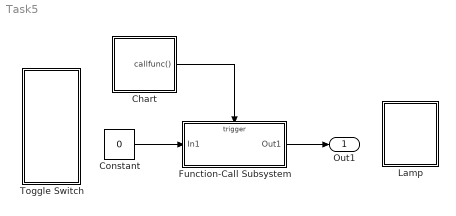
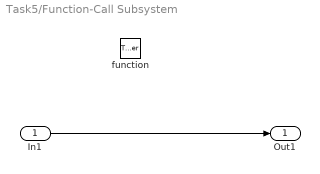
== system Task5/Lamp ==

== system Task5/Toggle Switch ==

== stateflow chart Task5/Chart ==
  state call
    en:
    du:
    ex:
  (default) -> call
  call -> call : [after(5,msec)]{callfunc;}
  events: callfunc output FUNCTION_CALL_EVENT

/*
 * File: Task5.c
 *
 * Code generated for Simulink model 'Task5'.
 *
 * Model version                  : 1.2
 * Simulink Coder version         : 8.10 (R2016a) 10-Feb-2016
 * C/C++ source code generated on : Wed Apr 06 01:38:38 2022
 *
 * Target selection: ert.tlc
 * Embedded hardware selection: Intel->x86-64 (Windows64)
 * Code generation objectives: Unspecified
 * Validation result: Not run
 */

#include "Task5.h"
#include "Task5_private.h"

/* Block signals (auto storage) */
B_Task5_T Task5_B;

/* Block states (auto storage) */
DW_Task5_T Task5_DW;

/* External outputs (root outports fed by signals with auto storage) */
ExtY_Task5_T Task5_Y;

/* Real-time model */
RT_MODEL_Task5_T Task5_M_;
RT_MODEL_Task5_T *const Task5_M = &Task5_M_;

/* Model step function */
void Task5_step(void)
{
  /* Chart: '<Root>/Chart' incorporates:
   *  Constant: '<Root>/Constant'
   *  Inport: '<S2>/In1'
   */
  if (Task5_DW.temporalCounter_i1 < 3U) {
    Task5_DW.temporalCounter_i1++;
  }

  /* Gateway: Chart */
  /* During: Chart */
  if (Task5_DW.is_active_c3_Task5 == 0U) {
    /* Entry: Chart */
    Task5_DW.is_active_c3_Task5 = 1U;

    /* Entry Internal: Chart */
    /* Transition: '<S1>:2' */
    Task5_DW.temporalCounter_i1 = 0U;
  } else {
    /* During 'call': '<S1>:1' */
    if (Task5_DW.temporalCounter_i1 >= 1U) {
      /* Outputs for Function Call SubSystem: '<Root>/Function-Call Subsystem' */
      /* Transition: '<S1>:4' */
      /* Event: '<S1>:6' */
      Task5_B.In1 = 0.0;

      /* End of Outputs for SubSystem: '<Root>/Function-Call Subsystem' */
      Task5_DW.temporalCounter_i1 = 0U;
    }
  }

  /* End of Chart: '<Root>/Chart' */

  /* Outport: '<Root>/Out1' */
  Task5_Y.Out1 = Task5_B.In1;
}
